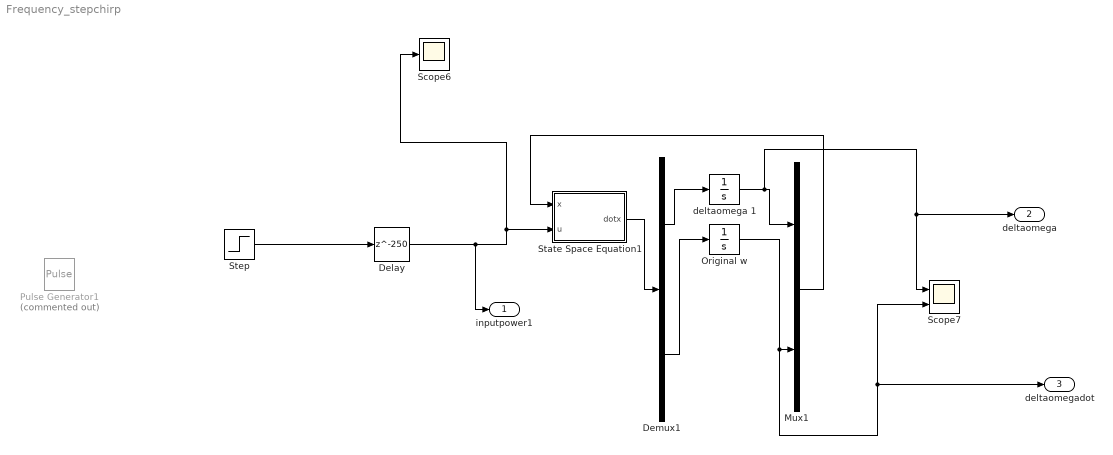
== matlab function Frequency_stepchirp/State Space Equation1 ==
function dotx  = fcn(x, u)
D = 1.5/100;
M = 3.0;
    Tg = 0.2;
    Rp = 0.05;
    Ki=2;
    dotx = zeros(2, 1);
    %x1 = x(1);
    x1 = x(1);
    x2=x(2);
    dotx = [x2;-(D/(M*Tg)+1/(Rp*M*Tg))*x1-(D/M+1/Tg)*x2-1/(M*Tg)*u];

/*
 * Frequency_stepchirp.c
 *
 * Academic License - for use in teaching, academic research, and meeting
 * course requirements at degree granting institutions only.  Not for
 * government, commercial, or other organizational use.
 *
 * Code generation for model "Frequency_stepchirp".
 *
 * Model version              : 1.31
 * Simulink Coder version : 9.6 (R2021b) 14-May-2021
 * C source code generated on : Mon Jul 31 18:03:32 2023
 *
 * Target selection: grt.tlc
 * Note: GRT includes extra infrastructure and instrumentation for prototyping
 * Embedded hardware selection: Intel->x86-64 (Windows64)
 * Code generation objectives: Unspecified
 * Validation result: Not run
 */

#include "Frequency_stepchirp.h"
#include "Frequency_stepchirp_private.h"

/* Block signals (default storage) */
B_Frequency_stepchirp_T Frequency_stepchirp_B;

/* Continuous states */
X_Frequency_stepchirp_T Frequency_stepchirp_X;

/* Block states (default storage) */
DW_Frequency_stepchirp_T Frequency_stepchirp_DW;

/* External outputs (root outports fed by signals with default storage) */
ExtY_Frequency_stepchirp_T Frequency_stepchirp_Y;

/* Real-time model */
static RT_MODEL_Frequency_stepchirp_T Frequency_stepchirp_M_;
RT_MODEL_Frequency_stepchirp_T *const Frequency_stepchirp_M =
  &Frequency_stepchirp_M_;

/*
 * This function updates continuous states using the ODE4 fixed-step
 * solver algorithm
 */
static void rt_ertODEUpdateContinuousStates(RTWSolverInfo *si )
{
  time_T t = rtsiGetT(si);
  time_T tnew = rtsiGetSolverStopTime(si);
  time_T h = rtsiGetStepSize(si);
  real_T *x = rtsiGetContStates(si);
  ODE4_IntgData *id = (ODE4_IntgData *)rtsiGetSolverData(si);
  real_T *y = id->y;
  real_T *f0 = id->f[0];
  real_T *f1 = id->f[1];
  real_T *f2 = id->f[2];
  real_T *f3 = id->f[3];
  real_T temp;
  int_T i;
  int_T nXc = 2;
  rtsiSetSimTimeStep(si,MINOR_TIME_STEP);

  /* Save the state values at time t in y, we'll use x as ynew. */
  (void) memcpy(y, x,
                (uint_T)nXc*sizeof(real_T));

  /* Assumes that rtsiSetT and ModelOutputs are up-to-date */
  /* f0 = f(t,y) */
  rtsiSetdX(si, f0);
  Frequency_stepchirp_derivatives();

  /* f1 = f(t + (h/2), y + (h/2)*f0) */
  temp = 0.5 * h;
  for (i = 0; i < nXc; i++) {
    x[i] = y[i] + (temp*f0[i]);
  }

  rtsiSetT(si, t + temp);
  rtsiSetdX(si, f1);
  Frequency_stepchirp_output();
  Frequency_stepchirp_derivatives();

  /* f2 = f(t + (h/2), y + (h/2)*f1) */
  for (i = 0; i < nXc; i++) {
    x[i] = y[i] + (temp*f1[i]);
  }

  rtsiSetdX(si, f2);
  Frequency_stepchirp_output();
  Frequency_stepchirp_derivatives();

  /* f3 = f(t + h, y + h*f2) */
  for (i = 0; i < nXc; i++) {
    x[i] = y[i] + (h*f2[i]);
  }

  rtsiSetT(si, tnew);
  rtsiSetdX(si, f3);
  Frequency_stepchirp_output();
  Frequency_stepchirp_derivatives();

  /* tnew = t + h
     ynew = y + (h/6)*(f0 + 2*f1 + 2*f2 + 2*f3) */
  temp = h / 6.0;
  for (i = 0; i < nXc; i++) {
    x[i] = y[i] + temp*(f0[i] + 2.0*f1[i] + 2.0*f2[i] + f3[i]);
  }

  rtsiSetSimTimeStep(si,MAJOR_TIME_STEP);
}

/* Model output function */
void Frequency_stepchirp_output(void)
{
  if (rtmIsMajorTimeStep(Frequency_stepchirp_M)) {
    /* set solver stop time */
    if (!(Frequency_stepchirp_M->Timing.clockTick0+1)) {
      rtsiSetSolverStopTime(&Frequency_stepchirp_M->solverInfo,
                            ((Frequency_stepchirp_M->Timing.clockTickH0 + 1) *
        Frequency_stepchirp_M->Timing.stepSize0 * 4294967296.0));
    } else {
      rtsiSetSolverStopTime(&Frequency_stepchirp_M->solverInfo,
                            ((Frequency_stepchirp_M->Timing.clockTick0 + 1) *
        Frequency_stepchirp_M->Timing.stepSize0 +
        Frequency_stepchirp_M->Timing.clockTickH0 *
        Frequency_stepchirp_M->Timing.stepSize0 * 4294967296.0));
    }
  }                                    /* end MajorTimeStep */

  /* Update absolute time of base rate at minor time step */
  if (rtmIsMinorTimeStep(Frequency_stepchirp_M)) {
    Frequency_stepchirp_M->Timing.t[0] = rtsiGetT
      (&Frequency_stepchirp_M->solverInfo);
  }

  /* Integrator: '<Root>/deltaomega 1' */
  Frequency_stepchirp_B.deltaomega1 = Frequency_stepchirp_X.deltaomega1_CSTATE;

  /* Outport: '<Root>/deltaomega' */
  Frequency_stepchirp_Y.deltaomega = Frequency_stepchirp_B.deltaomega1;

  /* Integrator: '<Root>/Original w' */
  Frequency_stepchirp_B.Originalw = Frequency_stepchirp_X.Originalw_CSTATE;

  /* Outport: '<Root>/deltaomegadot' */
  Frequency_stepchirp_Y.deltaomegadot = Frequency_stepchirp_B.Originalw;
  if (rtmIsMajorTimeStep(Frequency_stepchirp_M)) {
    /* Outport: '<Root>/inputpower1' incorporates:
     *  Delay: '<Root>/Delay'
     */
    Frequency_stepchirp_Y.inputpower1 = Frequency_stepchirp_DW.Delay_DSTATE[0];

    /* Step: '<Root>/Step' */
    if ((((Frequency_stepchirp_M->Timing.clockTick1+
           Frequency_stepchirp_M->Timing.clockTickH1* 4294967296.0)) * 0.02) <
        Frequency_stepchirp_P.Step_Time) {
      /* Step: '<Root>/Step' */
      Frequency_stepchirp_B.Step = Frequency_stepchirp_P.Step_Y0;
    } else {
      /* Step: '<Root>/Step' */
      Frequency_stepchirp_B.Step = Frequency_stepchirp_P.Step_YFinal;
    }

    /* End of Step: '<Root>/Step' */
  }

  /* MATLAB Function: '<Root>/State Space Equation1' incorporates:
   *  Outport: '<Root>/inputpower1'
   *  SignalConversion generated from: '<S1>/ SFunction '
   */
  Frequency_stepchirp_B.dotx[0] = Frequency_stepchirp_B.Originalw;
  Frequency_stepchirp_B.dotx[1] = (-33.358333333333327 *
    Frequency_stepchirp_B.deltaomega1 - 5.005 * Frequency_stepchirp_B.Originalw)
    - 1.6666666666666665 * Frequency_stepchirp_Y.inputpower1;
}

/* Model update function */
void Frequency_stepchirp_update(void)
{
  int_T idxDelay;
  if (rtmIsMajorTimeStep(Frequency_stepchirp_M)) {
    /* Update for Delay: '<Root>/Delay' */
    for (idxDelay = 0; idxDelay < 249; idxDelay++) {
      Frequency_stepchirp_DW.Delay_DSTATE[idxDelay] =
        Frequency_stepchirp_DW.Delay_DSTATE[idxDelay + 1];
    }

    Frequency_stepchirp_DW.Delay_DSTATE[249] = Frequency_stepchirp_B.Step;

    /* End of Update for Delay: '<Root>/Delay' */
  }

  /* signal main to stop simulation */
  {                                    /* Sample time: [0.0s, 0.0s] */
    if ((rtmGetTFinal(Frequency_stepchirp_M)!=-1) &&
        !((rtmGetTFinal(Frequency_stepchirp_M)-
           (((Frequency_stepchirp_M->Timing.clockTick1+
              Frequency_stepchirp_M->Timing.clockTickH1* 4294967296.0)) * 0.02))
          > (((Frequency_stepchirp_M->Timing.clockTick1+
               Frequency_stepchirp_M->Timing.clockTickH1* 4294967296.0)) * 0.02)
          * (DBL_EPSILON))) {
      rtmSetErrorStatus(Frequency_stepchirp_M, "Simulation finished");
    }
  }

  if (rtmIsMajorTimeStep(Frequency_stepchirp_M)) {
    rt_ertODEUpdateContinuousStates(&Frequency_stepchirp_M->solverInfo);
  }

  /* Update absolute time for base rate */
  /* The "clockTick0" counts the number of times the code of this task has
   * been executed. The absolute time is the multiplication of "clockTick0"
   * and "Timing.stepSize0". Size of "clockTick0" ensures timer will not
   * overflow during the application lifespan selected.
   * Timer of this task consists of two 32 bit unsigned integers.
   * The two integers represent the low bits Timing.clockTick0 and the high bits
   * Timing.clockTickH0. When the low bit overflows to 0, the high bits increment.
   */
  if (!(++Frequency_stepchirp_M->Timing.clockTick0)) {
    ++Frequency_stepchirp_M->Timing.clockTickH0;
  }

  Frequency_stepchirp_M->Timing.t[0] = rtsiGetSolverStopTime
    (&Frequency_stepchirp_M->solverInfo);

  {
    /* Update absolute timer for sample time: [0.02s, 0.0s] */
    /* The "clockTick1" counts the number of times the code of this task has
     * been executed. The resolution of this integer timer is 0.02, which is the step size
     * of the task. Size of "clockTick1" ensures timer will not overflow during the
     * application lifespan selected.
     * Timer of this task consists of two 32 bit unsigned integers.
     * The two integers represent the low bits Timing.clockTick1 and the high bits
     * Timing.clockTickH1. When the low bit overflows to 0, the high bits increment.
     */
    Frequency_stepchirp_M->Timing.clockTick1++;
    if (!Frequency_stepchirp_M->Timing.clockTick1) {
      Frequency_stepchirp_M->Timing.clockTickH1++;
    }
  }
}
